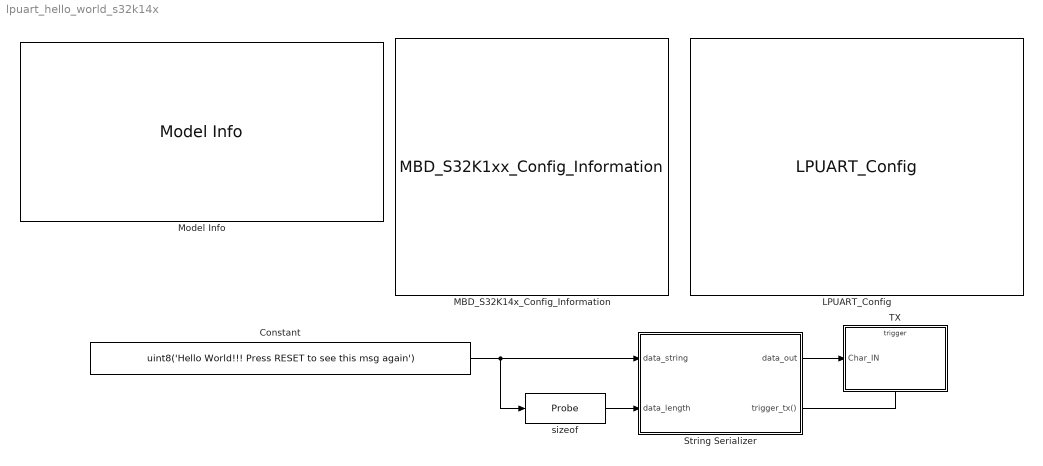
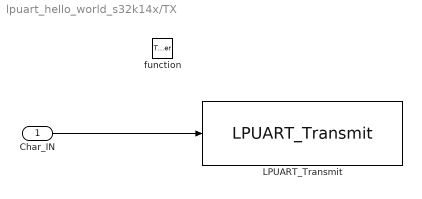
== stateflow chart String Serializer ==
  state Initialize
    entry:
    counter = 1;
    data_out = uint8(32);
  state Serialize
    entry:
    data_out = uint8(data_string(counter));
    counter = counter+1;
  state Stop
  (default) -> Initialize [order 1] : [data_length > 0]
  Initialize -> Serialize : {trigger_tx}
  Serialize -> Serialize [order 1] : [counter <= data_length] {trigger_tx;}
  Serialize -> Stop [order 2] : [counter > data_length] {trigger_tx}
  (default) -> Stop [order 2] : [data_length == 0]
  data: data_string input double; data_length input double; data_out output uint8; counter local double
  events: trigger_tx output FUNCTION_CALL_EVENT

/*
 * Academic License - for use in teaching, academic research, and meeting
 * course requirements at degree granting institutions only.  Not for
 * government, commercial, or other organizational use.
 *
 * File: lpuart_hello_world_s32k14x.c
 *
 * Code generated for Simulink model 'lpuart_hello_world_s32k14x'.
 *
 * Model version                  : 1.109
 * Simulink Coder version         : 9.0 (R2018b) 24-May-2018
 * C/C++ source code generated on : Sat Apr  4 18:50:07 2020
 *
 * Target selection: mbd_s32k.tlc
 * Embedded hardware selection: ARM Compatible->ARM Cortex
 * Code generation objectives: Unspecified
 * Validation result: Not run
 */

#include "lpuart_hello_world_s32k14x.h"
#include "lpuart_hello_world_s32k14x_private.h"

/* Named constants for Chart: '<Root>/String Serializer' */
#define lpuart_hello_IN_NO_ACTIVE_CHILD ((uint8_T)0U)
#define lpuart_hello_worl_IN_Initialize ((uint8_T)1U)
#define lpuart_hello_world_IN_Serialize ((uint8_T)2U)
#define lpuart_hello_world_s32k_IN_Stop ((uint8_T)3U)

/* Block signals (default storage) */
B_lpuart_hello_world_s32k14x_T lpuart_hello_world_s32k14x_B;

/* Block states (default storage) */
DW_lpuart_hello_world_s32k14x_T lpuart_hello_world_s32k14x_DW;

/* Real-time model */
RT_MODEL_lpuart_hello_world_s_T lpuart_hello_world_s32k14x_M_;
RT_MODEL_lpuart_hello_world_s_T *const lpuart_hello_world_s32k14x_M =
  &lpuart_hello_world_s32k14x_M_;

/* Output and update for function-call system: '<Root>/TX' */
void lpuart_hello_world_s32k14x_TX(uint8_T rtu_Char_IN)
{
  /* S-Function (lpuart_s32k_transmit): '<S3>/LPUART_Transmit' */
  {
    LPUART_DRV_SendData(1, &rtu_Char_IN, 1);
  }
}

/* Model step function */
void lpuart_hello_world_s32k14x_step(void)
{
  /* Chart: '<Root>/String Serializer' incorporates:
   *  Constant: '<Root>/Constant'
   */
  if (lpuart_hello_world_s32k14x_DW.is_active_c3_lpuart_hello_world == 0U) {
    lpuart_hello_world_s32k14x_DW.is_active_c3_lpuart_hello_world = 1U;
    if (lpuart_hello_world_s32k14x_B.sizeof_i > 0.0) {
      lpuart_hello_world_s32k14x_DW.is_c3_lpuart_hello_world_s32k14 =
        lpuart_hello_worl_IN_Initialize;
      lpuart_hello_world_s32k14x_DW.counter = 1.0;
      lpuart_hello_world_s32k14x_B.data_out = 32U;
    } else {
      if (lpuart_hello_world_s32k14x_B.sizeof_i == 0.0) {
        lpuart_hello_world_s32k14x_DW.is_c3_lpuart_hello_world_s32k14 =
          lpuart_hello_world_s32k_IN_Stop;
      }
    }
  } else {
    switch (lpuart_hello_world_s32k14x_DW.is_c3_lpuart_hello_world_s32k14) {
     case lpuart_hello_worl_IN_Initialize:
      /* Outputs for Function Call SubSystem: '<Root>/TX' */
      lpuart_hello_world_s32k14x_TX(lpuart_hello_world_s32k14x_B.data_out);

      /* End of Outputs for SubSystem: '<Root>/TX' */
      lpuart_hello_world_s32k14x_DW.is_c3_lpuart_hello_world_s32k14 =
        lpuart_hello_world_IN_Serialize;
      lpuart_hello_world_s32k14x_B.data_out =
        lpuart_hello_world_s32k1_ConstP.Constant_Value[(int32_T)
        lpuart_hello_world_s32k14x_DW.counter - 1];
      lpuart_hello_world_s32k14x_DW.counter++;
      break;

     case lpuart_hello_world_IN_Serialize:
      if (lpuart_hello_world_s32k14x_DW.counter <=
          lpuart_hello_world_s32k14x_B.sizeof_i) {
        /* Outputs for Function Call SubSystem: '<Root>/TX' */
        lpuart_hello_world_s32k14x_TX(lpuart_hello_world_s32k14x_B.data_out);

        /* End of Outputs for SubSystem: '<Root>/TX' */
        lpuart_hello_world_s32k14x_DW.is_c3_lpuart_hello_world_s32k14 =
          lpuart_hello_world_IN_Serialize;
        lpuart_hello_world_s32k14x_B.data_out =
          lpuart_hello_world_s32k1_ConstP.Constant_Value[(int32_T)
          lpuart_hello_world_s32k14x_DW.counter - 1];
        lpuart_hello_world_s32k14x_DW.counter++;
      } else {
        if (lpuart_hello_world_s32k14x_DW.counter >
            lpuart_hello_world_s32k14x_B.sizeof_i) {
          /* Outputs for Function Call SubSystem: '<Root>/TX' */
          lpuart_hello_world_s32k14x_TX(lpuart_hello_world_s32k14x_B.data_out);

          /* End of Outputs for SubSystem: '<Root>/TX' */
          lpuart_hello_world_s32k14x_DW.is_c3_lpuart_hello_world_s32k14 =
            lpuart_hello_world_s32k_IN_Stop;
        }
      }
      break;
    }
  }

  /* End of Chart: '<Root>/String Serializer' */
}
